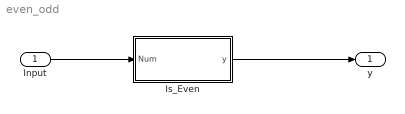
== matlab function even_odd/Is_Even ==
function y = fcn(Num)
if mod(Num, 2) == 0
    y = 1;
    % means number is even
else
    y = 0;
    % means number is odd
end

/*
 * File: even_odd.c
 *
 * Code generated for Simulink model 'even_odd'.
 *
 * Model version                  : 1.2
 * Simulink Coder version         : 9.5 (R2021a) 14-Nov-2020
 * C/C++ source code generated on : Sat Feb 10 00:36:44 2024
 *
 * Target selection: ert.tlc
 * Embedded hardware selection: Intel->x86-64 (Windows64)
 * Code generation objectives: Unspecified
 * Validation result: Not run
 */

#include "even_odd.h"
#include "even_odd_private.h"

/* External inputs (root inport signals with default storage) */
ExtU_even_odd_T even_odd_U;

/* External outputs (root outports fed by signals with default storage) */
ExtY_even_odd_T even_odd_Y;

/* Real-time model */
static RT_MODEL_even_odd_T even_odd_M_;
RT_MODEL_even_odd_T *const even_odd_M = &even_odd_M_;

/* Model step function */
void even_odd_step(void)
{
  /* Outport: '<Root>/y' incorporates:
   *  Inport: '<Root>/Input'
   *  MATLAB Function: '<Root>/Is_Even'
   */
  even_odd_Y.y = (even_odd_U.Input - ((even_odd_U.Input >> 1) << 1) == 0);
}
